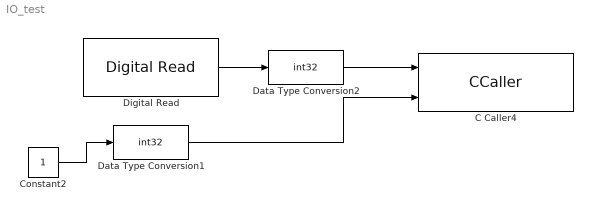
/*
 * IO_test.c
 *
 * Academic License - for use in teaching, academic research, and meeting
 * course requirements at degree granting institutions only.  Not for
 * government, commercial, or other organizational use.
 *
 * Code generation for model "IO_test".
 *
 * Model version              : 1.3
 * Simulink Coder version : 9.8 (R2022b) 13-May-2022
 * C source code generated on : Fri Jul 21 09:15:37 2023
 *
 * Target selection: ert.tlc
 * Note: GRT includes extra infrastructure and instrumentation for prototyping
 * Embedded hardware selection: ARM Compatible->ARM Cortex
 * Code generation objectives: Unspecified
 * Validation result: Not run
 */

#include "IO_test.h"
#include "IO_test_types.h"
#include <math.h>
#include "rt_nonfinite.h"
#include "rtwtypes.h"
#include <string.h>

/* Block states (default storage) */
DW_IO_test_T IO_test_DW;

/* Real-time model */
static RT_MODEL_IO_test_T IO_test_M_;
RT_MODEL_IO_test_T *const IO_test_M = &IO_test_M_;

/* Model step function */
void IO_test_step(void)
{
  real_T tmp;
  boolean_T rtb_DigitalRead_0;

  /* MATLABSystem: '<Root>/Digital Read' */
  if (IO_test_DW.obj.SampleTime != IO_test_P.DigitalRead_SampleTime) {
    IO_test_DW.obj.SampleTime = IO_test_P.DigitalRead_SampleTime;
  }

  rtb_DigitalRead_0 = MW_digitalIO_read(IO_test_DW.obj.MW_DIGITALIO_HANDLE);

  /* DataTypeConversion: '<Root>/Data Type Conversion1' incorporates:
   *  Constant: '<Root>/Constant2'
   */
  tmp = floor(IO_test_P.Constant2_Value);
  if (rtIsNaN(tmp) || rtIsInf(tmp)) {
    tmp = 0.0;
  } else {
    tmp = fmod(tmp, 4.294967296E+9);
  }

  /* CCaller: '<Root>/C Caller4' incorporates:
   *  DataTypeConversion: '<Root>/Data Type Conversion1'
   *  DataTypeConversion: '<Root>/Data Type Conversion2'
   *  MATLABSystem: '<Root>/Digital Read'
   */
  print_input(rtb_DigitalRead_0, tmp < 0.0 ? -(int32_T)(uint32_T)-tmp : (int32_T)
              (uint32_T)tmp);
}
